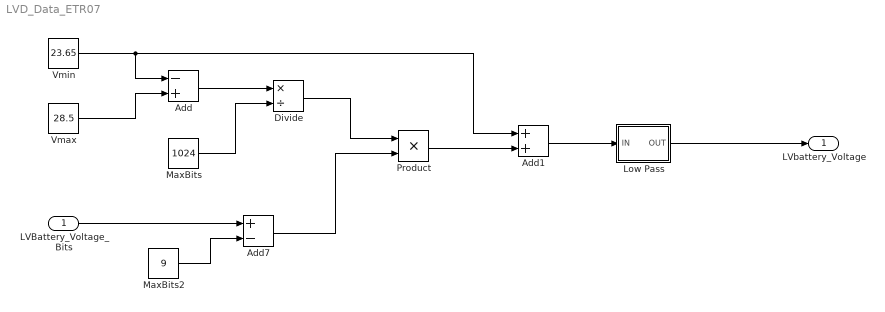
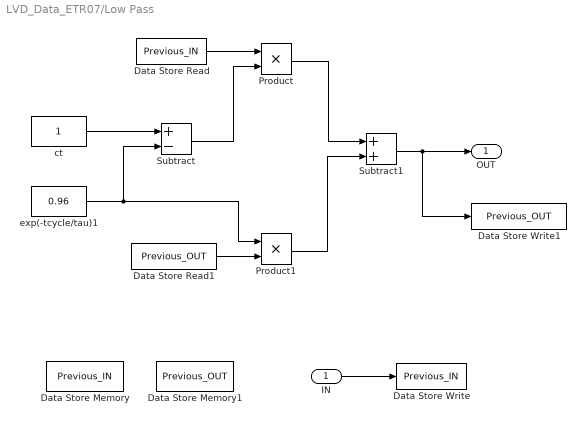
/*
 * LVD_Data_ETR07.c
 *
 * Academic License - for use in teaching, academic research, and meeting
 * course requirements at degree granting institutions only.  Not for
 * government, commercial, or other organizational use.
 *
 * Code generation for model "LVD_Data_ETR07".
 *
 * Model version              : 1.9
 * Simulink Coder version : 8.13 (R2017b) 24-Jul-2017
 * C source code generated on : Tue Apr 12 15:33:16 2022
 *
 * Target selection: irt.tlc
 * Note: GRT includes extra infrastructure and instrumentation for prototyping
 * Embedded hardware selection: Intel->x86-64 (Windows64)
 * Code generation objectives: Unspecified
 * Validation result: Not run
 */

#include "LVD_Data_ETR07.h"
#include "LVD_Data_ETR07_private.h"

/* Block states (auto storage) */
DW_LVD_Data_ETR07_T LVD_Data_ETR07_DW;

/* External inputs (root inport signals with auto storage) */
ExtU_LVD_Data_ETR07_T LVD_Data_ETR07_U;

/* External outputs (root outports fed by signals with auto storage) */
ExtY_LVD_Data_ETR07_T LVD_Data_ETR07_Y;

/* Real-time model */
RT_MODEL_LVD_Data_ETR07_T LVD_Data_ETR07_M_;
RT_MODEL_LVD_Data_ETR07_T *const LVD_Data_ETR07_M = &LVD_Data_ETR07_M_;

/* Model output function */
static void LVD_Data_ETR07_output(void)
{
  real_T rtb_Subtract1;

  /* Outputs for Atomic SubSystem: '<Root>/Low Pass' */
  /* Sum: '<S1>/Subtract1' incorporates:
   *  Constant: '<S1>/ct'
   *  Constant: '<S1>/exp(-tcycle//tau)1'
   *  DataStoreRead: '<S1>/Data Store Read'
   *  DataStoreRead: '<S1>/Data Store Read1'
   *  Product: '<S1>/Product'
   *  Product: '<S1>/Product1'
   *  Sum: '<S1>/Subtract'
   */
  rtb_Subtract1 = (LVD_Data_ETR07_P.ct_Value -
                   LVD_Data_ETR07_P.exptcycletau1_Value) *
    LVD_Data_ETR07_DW.Previous_IN + LVD_Data_ETR07_P.exptcycletau1_Value *
    LVD_Data_ETR07_DW.Previous_OUT;

  /* DataStoreWrite: '<S1>/Data Store Write1' */
  LVD_Data_ETR07_DW.Previous_OUT = rtb_Subtract1;

  /* DataStoreWrite: '<S1>/Data Store Write' incorporates:
   *  Constant: '<Root>/MaxBits'
   *  Constant: '<Root>/MaxBits2'
   *  Constant: '<Root>/Vmax'
   *  Constant: '<Root>/Vmin'
   *  Inport: '<Root>/LVBattery_Voltage_Bits'
   *  Product: '<Root>/Divide'
   *  Product: '<Root>/Product'
   *  Sum: '<Root>/Add'
   *  Sum: '<Root>/Add1'
   *  Sum: '<Root>/Add7'
   */
  LVD_Data_ETR07_DW.Previous_IN = (LVD_Data_ETR07_P.Vmax_Value -
    LVD_Data_ETR07_P.Vmin_Value) / LVD_Data_ETR07_P.MaxBits_Value *
    (LVD_Data_ETR07_U.LVBattery_Voltage_Bits - LVD_Data_ETR07_P.MaxBits2_Value)
    + LVD_Data_ETR07_P.Vmin_Value;

  /* End of Outputs for SubSystem: '<Root>/Low Pass' */

  /* Outport: '<Root>/LVbattery_Voltage' */
  LVD_Data_ETR07_Y.LVbattery_Voltage = rtb_Subtract1;
}

/* Model update function */
static void LVD_Data_ETR07_update(void)
{
  /* Update absolute time for base rate */
  /* The "clockTick0" counts the number of times the code of this task has
   * been executed. The absolute time is the multiplication of "clockTick0"
   * and "Timing.stepSize0". Size of "clockTick0" ensures timer will not
   * overflow during the application lifespan selected.
   * Timer of this task consists of two 32 bit unsigned integers.
   * The two integers represent the low bits Timing.clockTick0 and the high bits
   * Timing.clockTickH0. When the low bit overflows to 0, the high bits increment.
   */
  if (!(++LVD_Data_ETR07_M->Timing.clockTick0)) {
    ++LVD_Data_ETR07_M->Timing.clockTickH0;
  }

  LVD_Data_ETR07_M->Timing.t[0] = LVD_Data_ETR07_M->Timing.clockTick0 *
    LVD_Data_ETR07_M->Timing.stepSize0 + LVD_Data_ETR07_M->Timing.clockTickH0 *
    LVD_Data_ETR07_M->Timing.stepSize0 * 4294967296.0;
}
